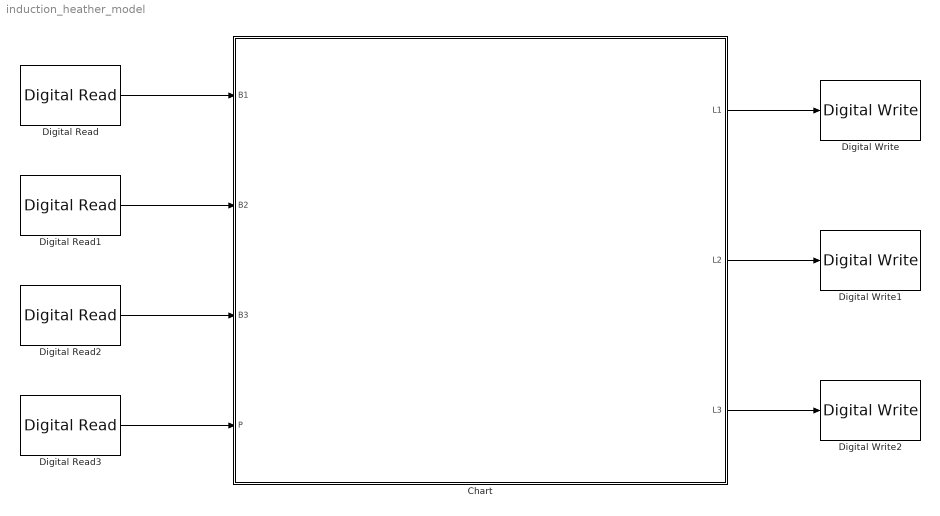
== stateflow chart induction_heather_model/Chart ==
  state INDUCTION_STOVE
    state HEATER [parallel]
      state OFF
        en: L1 = LED_OFF;
        L2 = LED_OFF;
        l3s = LED_OFF;
        period = 1;
      state COOKING
        state WAITING
          ready = false;
          on after(5, sec):
          ready = true;
        state READY
          en: level = 0;
          next_level = 0;
          l3s = LED_OFF;
          period = 0;
        state POWER
          en: level=next_level;
          l3s = LED_ON;
          period = int32( 2000/2^(level-1));
        state ANOMALY
          en: L2 = LED_ON;
          ex: L2 = LED_OFF;
        WAITING -> WAITING [order 1] : [b2s==PRESSED && next_level < 4]{next_level=next_level+1;}
        WAITING -> WAITING [order 3] : [b3s==PRESSED && next_level > 0]{next_level=next_level-1;}
        READY -> WAITING [order 2] : [b2s==PRESSED]{next_level=next_level+1;}
        WAITING -> READY [order 5] : [ready==true && next_level == 0]
        POWER -> WAITING [order 2] : [b2s==PRESSED && next_level < 4]{next_level=next_level+1;}
        POWER -> WAITING [order 3] : [b3s==PRESSED && next_level  > 0]{next_level=next_level-1;}
        WAITING -> ANOMALY [order 2] : [ps~=PRESENCE]
        WAITING -> POWER [order 4] : [ready==true && next_level ~= 0]
        POWER -> ANOMALY [order 1] : [ps~=PRESENCE]
        ANOMALY -> POWER [order 1] : [ps==PRESENCE]
      state ON
        en: L1 = LED_ON;
        L2 = LED_OFF;
        l3s = LED_OFF;
      (default) -> INDUCTION_STOVE.HEATER.OFF
      INDUCTION_STOVE.HEATER.OFF -> INDUCTION_STOVE.HEATER.ON : [b1s==PRESSED]
      INDUCTION_STOVE.HEATER.ON -> INDUCTION_STOVE.HEATER.OFF [order 2] : [b1s==PRESSED]
      COOKING -> INDUCTION_STOVE.HEATER.OFF : [b1s==PRESSED ]
      ANOMALY -> INDUCTION_STOVE.HEATER.ON [order 2] : [after(10,sec)]
      INDUCTION_STOVE.HEATER.ON -> READY [order 1] : [ps==PRESENCE]
      READY -> INDUCTION_STOVE.HEATER.ON [order 1] : [ps~=PRESENCE ]
    state INPUTS [parallel]
      state BUTTON_3 [parallel]
      state BUTTON_1 [parallel]
        state OFF
          en: b1s = ~PRESSED;
        state WAIT_ON
          en:
          on after(200, msec):
          b1s=PRESSED;
        state LONGPRESSED_OFF
          en: b1s =~PRESSED;
        state LONGPRESSED_ON
          en:
          b1s=~PRESSED;
        state WAIT_OFF
          on after(1,sec):
          b1s=PRESSED;
        state ON
          en: b1s = ~PRESSED;
        (default) -> INDUCTION_STOVE.INPUTS.BUTTON_1.OFF
        INDUCTION_STOVE.INPUTS.BUTTON_1.OFF -> WAIT_ON : [B1==PRESSED]
        WAIT_ON -> INDUCTION_STOVE.INPUTS.BUTTON_1.OFF [order 2] : [B1 ~= PRESSED]
        LONGPRESSED_OFF -> INDUCTION_STOVE.INPUTS.BUTTON_1.OFF : [B1~= PRESSED]
        WAIT_ON -> LONGPRESSED_ON [order 1] : [B1 == PRESSED && b1s == PRESSED]
        WAIT_OFF -> LONGPRESSED_OFF [order 1] : [B1==PRESSED && b1s == PRESSED]
        LONGPRESSED_ON -> INDUCTION_STOVE.INPUTS.BUTTON_1.ON : [B1 ~= PRESSED]
        INDUCTION_STOVE.INPUTS.BUTTON_1.ON -> WAIT_OFF : [B1==PRESSED]
        WAIT_OFF -> INDUCTION_STOVE.INPUTS.BUTTON_1.ON [order 2] : [B1 ~= PRESSED]
      state BUTTON_2 [parallel]
      state PRESENCE [parallel]
    state POWER_LED [parallel]
      state OFF
        entry: L3 = LED_OFF;
      state ON
        entry: L3 = LED_ON;
      (default) -> INDUCTION_STOVE.POWER_LED.OFF
      INDUCTION_STOVE.POWER_LED.ON -> INDUCTION_STOVE.POWER_LED.OFF : [l3s == LED_OFF || (after(period/2,msec) && l3s == LED_ON)]
      INDUCTION_STOVE.POWER_LED.OFF -> INDUCTION_STOVE.POWER_LED.ON : [after(period/2,msec) && l3s == LED_ON]
  data: button_state function_output; button_state function_output; presence_state function_output; B1 input boolean; B2 input boolean; B3 input boolean; P input boolean; L1 output boolean; L2 output boolean; L3 output boolean; LED_ON constant boolean =1; LED_OFF constant boolean =0; PRESSED constant boolean =0; b1s local boolean; ps local boolean; PRESENCE constant boolean =0; b3s local boolean; b2s local boolean; l3s local boolean; period local int32; level local; next_level local; ready local boolean

/*
 * induction_heather_model.c
 *
 * Academic License - for use in teaching, academic research, and meeting
 * course requirements at degree granting institutions only.  Not for
 * government, commercial, or other organizational use.
 *
 * Code generation for model "induction_heather_model".
 *
 * Model version              : 37
 * Simulink Coder version : 9.9 (R2023a) 19-Nov-2022
 * C source code generated on : Sat Jun 17 16:27:33 2023
 *
 * Target selection: ert.tlc
 * Note: GRT includes extra infrastructure and instrumentation for prototyping
 * Embedded hardware selection: ARM Compatible->ARM Cortex
 * Code generation objectives: Unspecified
 * Validation result: Not run
 */

#include "induction_heather_model.h"
#include "rtwtypes.h"
#include "induction_heather_model_private.h"
#include <math.h>
#include "induction_heather_model_types.h"
#include "rt_nonfinite.h"
#include <string.h>

/* Named constants for Chart: '<S1>/INDUCTION_STOVE.INPUTS.BUTTON_2' */
#define induction_he_IN_NO_ACTIVE_CHILD ((uint8_T)0U)
#define induction_heathe_IN_longpressed ((uint8_T)1U)
#define induction_heather_mo_IN_pressed ((uint8_T)2U)
#define induction_heather_mode_RELEASED (true)
#define induction_heather_model_IN_wait ((uint8_T)3U)
#define induction_heather_model_PRESSED (false)

/* Named constants for Chart: '<S1>/INDUCTION_STOVE.INPUTS.PRESENCE' */
#define induction__IN_NO_ACTIVE_CHILD_j ((uint8_T)0U)
#define induction_heather__IN_pressed_o ((uint8_T)1U)
#define induction_heather_mod_IN_wait_m ((uint8_T)2U)

/* Named constants for Chart: '<Root>/Chart' */
#define induction_he_IN_LONGPRESSED_OFF ((uint8_T)1U)
#define induction_hea_IN_LONGPRESSED_ON ((uint8_T)2U)
#define induction_heather_m_IN_WAIT_OFF ((uint8_T)5U)
#define induction_heather_mo_IN_ANOMALY ((uint8_T)1U)
#define induction_heather_mo_IN_COOKING ((uint8_T)1U)
#define induction_heather_mo_IN_WAITING ((uint8_T)4U)
#define induction_heather_mo_IN_WAIT_ON ((uint8_T)6U)
#define induction_heather_mod_IN_OFF_gt ((uint8_T)1U)
#define induction_heather_mode_IN_OFF_g ((uint8_T)3U)
#define induction_heather_mode_IN_ON_ie ((uint8_T)2U)
#define induction_heather_mode_IN_POWER ((uint8_T)2U)
#define induction_heather_mode_IN_READY ((uint8_T)3U)
#define induction_heather_model_IN_OFF ((uint8_T)2U)
#define induction_heather_model_IN_ON  ((uint8_T)3U)
#define induction_heather_model_IN_ON_i ((uint8_T)4U)
#define induction_heather_model_LED_OFF (false)
#define induction_heather_model_LED_ON (true)

/* Block signals (default storage) */
B_induction_heather_model_T induction_heather_model_B;

/* Block states (default storage) */
DW_induction_heather_model_T induction_heather_model_DW;

/* Real-time model */
static RT_MODEL_induction_heather_mo_T induction_heather_model_M_;
RT_MODEL_induction_heather_mo_T *const induction_heather_model_M =
  &induction_heather_model_M_;

/* Forward declaration for local functions */
static void induction_heather_model_HEATER(void);

/* Function for Chart: '<S1>/INDUCTION_STOVE.INPUTS.BUTTON_2' */
void induction_heather_button_during(boolean_T B1, boolean_T *button_state,
  real_T rtp_BUTTONDURATION, DW_INDUCTION_STOVEINPUTSBUTTO_T *localDW)
{
  switch (localDW->is_c4_library) {
   case induction_heathe_IN_longpressed:
    if (B1) {
      localDW->is_c4_library = induction_heather_model_IN_wait;
      *button_state = induction_heather_mode_RELEASED;
    }
    break;

   case induction_heather_mo_IN_pressed:
    if ((!*button_state) && (!B1)) {
      localDW->is_c4_library = induction_heathe_IN_longpressed;
      *button_state = induction_heather_mode_RELEASED;
    } else if (B1) {
      localDW->is_c4_library = induction_heather_model_IN_wait;
      *button_state = induction_heather_mode_RELEASED;
    } else if (localDW->temporalCounter_i1 >= (uint32_T)ceil(rtp_BUTTONDURATION *
                1000.0)) {
      *button_state = induction_heather_model_PRESSED;
    }
    break;

   default:
    /* case IN_wait: */
    if (!B1) {
      localDW->is_c4_library = induction_heather_mo_IN_pressed;
      localDW->temporalCounter_i1 = 0U;
      *button_state = induction_heather_mode_RELEASED;
    }
    break;
  }
}

/* Function for Chart: '<S1>/INDUCTION_STOVE.INPUTS.BUTTON_2' */
void induction_heather__button_enter(boolean_T *button_state,
  DW_INDUCTION_STOVEINPUTSBUTTO_T *localDW)
{
  /* Chart: '<S1>/INDUCTION_STOVE.INPUTS.BUTTON_2' */
  localDW->is_c4_library = induction_heather_model_IN_wait;
  *button_state = induction_heather_mode_RELEASED;
}

/* Function for Chart: '<S1>/INDUCTION_STOVE.INPUTS.BUTTON_2' */
void induction_heathe_button_gateway(DW_INDUCTION_STOVEINPUTSBUTTO_T *localDW)
{
  if (localDW->temporalCounter_i1 < MAX_uint32_T) {
    localDW->temporalCounter_i1++;
  }
}

/* Function for Chart: '<S1>/INDUCTION_STOVE.INPUTS.BUTTON_2' */
void induction_heather_m_button_init(DW_INDUCTION_STOVEINPUTSBUTTO_T *localDW)
{
  localDW->temporalCounter_i1 = 0U;
  localDW->is_c4_library = induction_he_IN_NO_ACTIVE_CHILD;
}

real_T rt_powd_snf(real_T u0, real_T u1)
{
  real_T tmp;
  real_T tmp_0;
  real_T y;
  if (rtIsNaN(u0) || rtIsNaN(u1)) {
    y = (rtNaN);
  } else {
    tmp = fabs(u0);
    tmp_0 = fabs(u1);
    if (rtIsInf(u1)) {
      if (tmp == 1.0) {
        y = 1.0;
      } else if (tmp > 1.0) {
        if (u1 > 0.0) {
          y = (rtInf);
        } else {
          y = 0.0;
        }
      } else if (u1 > 0.0) {
        y = 0.0;
      } else {
        y = (rtInf);
      }
    } else if (tmp_0 == 0.0) {
      y = 1.0;
    } else if (tmp_0 == 1.0) {
      if (u1 > 0.0) {
        y = u0;
      } else {
        y = 1.0 / u0;
      }
    } else if (u1 == 2.0) {
      y = u0 * u0;
    } else if ((u1 == 0.5) && (u0 >= 0.0)) {
      y = sqrt(u0);
    } else if ((u0 < 0.0) && (u1 > floor(u1))) {
      y = (rtNaN);
    } else {
      y = pow(u0, u1);
    }
  }

  return y;
}

real_T rt_roundd_snf(real_T u)
{
  real_T y;
  if (fabs(u) < 4.503599627370496E+15) {
    if (u >= 0.5) {
      y = floor(u + 0.5);
    } else if (u > -0.5) {
      y = u * 0.0;
    } else {
      y = ceil(u - 0.5);
    }
  } else {
    y = u;
  }

  return y;
}

/* Function for Chart: '<Root>/Chart' */
static void induction_heather_model_HEATER(void)
{
  real_T tmp;
  boolean_T guard1;
  boolean_T guard2;
  guard1 = false;
  guard2 = false;
  switch (induction_heather_model_DW.is_HEATER) {
   case induction_heather_mo_IN_COOKING:
    if (!induction_heather_model_DW.b1s) {
      induction_heather_model_DW.is_COOKING = induction__IN_NO_ACTIVE_CHILD_j;
      induction_heather_model_DW.is_HEATER = induction_heather_model_IN_OFF;
      induction_heather_model_B.L1 = induction_heather_model_LED_OFF;
      induction_heather_model_B.L2 = induction_heather_model_LED_OFF;
      induction_heather_model_DW.l3s = induction_heather_model_LED_OFF;
      induction_heather_model_DW.period = 1;
    } else {
      switch (induction_heather_model_DW.is_COOKING) {
       case induction_heather_mo_IN_ANOMALY:
        if (!induction_heather_model_DW.ps) {
          induction_heather_model_B.L2 = induction_heather_model_LED_OFF;
          induction_heather_model_DW.is_COOKING =
            induction_heather_mode_IN_POWER;
          induction_heather_model_DW.l3s = induction_heather_model_LED_ON;
          tmp = rt_roundd_snf(2000.0 / rt_powd_snf(2.0,
            induction_heather_model_DW.next_level - 1.0));
          if (tmp < 2.147483648E+9) {
            induction_heather_model_DW.period = (int32_T)tmp;
          } else {
            induction_heather_model_DW.period = MAX_int32_T;
          }
        } else if (induction_heather_model_DW.temporalCounter_i1 >= 10000U) {
          induction_heather_model_DW.is_COOKING =
            induction__IN_NO_ACTIVE_CHILD_j;
          induction_heather_model_DW.is_HEATER = induction_heather_model_IN_ON;
          induction_heather_model_B.L1 = induction_heather_model_LED_ON;
          induction_heather_model_B.L2 = induction_heather_model_LED_OFF;
          induction_heather_model_DW.l3s = induction_heather_model_LED_OFF;
        }
        break;

       case induction_heather_mode_IN_POWER:
        if (induction_heather_model_DW.ps) {
          induction_heather_model_DW.is_COOKING =
            induction_heather_mo_IN_ANOMALY;
          induction_heather_model_DW.temporalCounter_i1 = 0U;
          induction_heather_model_B.L2 = induction_heather_model_LED_ON;
        } else if ((!induction_heather_model_DW.b2s) &&
                   (induction_heather_model_DW.next_level < 4.0)) {
          induction_heather_model_DW.next_level++;
          guard2 = true;
        } else if ((!induction_heather_model_DW.b3s) &&
                   (induction_heather_model_DW.next_level > 0.0)) {
          induction_heather_model_DW.next_level--;
          guard2 = true;
        }
        break;

       case induction_heather_mode_IN_READY:
        if (induction_heather_model_DW.ps) {
          induction_heather_model_DW.is_COOKING =
            induction__IN_NO_ACTIVE_CHILD_j;
          induction_heather_model_DW.is_HEATER = induction_heather_model_IN_ON;
          induction_heather_model_B.L1 = induction_heather_model_LED_ON;
          induction_heather_model_B.L2 = induction_heather_model_LED_OFF;
          induction_heather_model_DW.l3s = induction_heather_model_LED_OFF;
        } else if (!induction_heather_model_DW.b2s) {
          induction_heather_model_DW.next_level++;
          induction_heather_model_DW.is_COOKING =
            induction_heather_mo_IN_WAITING;
          induction_heather_model_DW.temporalCounter_i1 = 0U;
          induction_heather_model_DW.ready = false;
        }
        break;

       default:
        /* case IN_WAITING: */
        if ((!induction_heather_model_DW.b2s) &&
            (induction_heather_model_DW.next_level < 4.0)) {
          induction_heather_model_DW.next_level++;
          guard1 = true;
        } else if (induction_heather_model_DW.ps) {
          induction_heather_model_DW.is_COOKING =
            induction_heather_mo_IN_ANOMALY;
          induction_heather_model_DW.temporalCounter_i1 = 0U;
          induction_heather_model_B.L2 = induction_heather_model_LED_ON;
        } else if ((!induction_heather_model_DW.b3s) &&
                   (induction_heather_model_DW.next_level > 0.0)) {
          induction_heather_model_DW.next_level--;
          guard1 = true;
        } else if (induction_heather_model_DW.ready &&
                   (induction_heather_model_DW.next_level != 0.0)) {
          induction_heather_model_DW.is_COOKING =
            induction_heather_mode_IN_POWER;
          induction_heather_model_DW.l3s = induction_heather_model_LED_ON;
          tmp = rt_roundd_snf(2000.0 / rt_powd_snf(2.0,
            induction_heather_model_DW.next_level - 1.0));
          if (tmp < 2.147483648E+9) {
            induction_heather_model_DW.period = (int32_T)tmp;
          } else {
            induction_heather_model_DW.period = MAX_int32_T;
          }
        } else if (induction_heather_model_DW.ready &&
                   (induction_heather_model_DW.next_level == 0.0)) {
          induction_heather_model_DW.is_COOKING =
            induction_heather_mode_IN_READY;
          induction_heather_model_DW.next_level = 0.0;
          induction_heather_model_DW.l3s = induction_heather_model_LED_OFF;
          induction_heather_model_DW.period = 0;
        } else {
          induction_heather_model_DW.ready =
            (induction_heather_model_DW.temporalCounter_i1 >= 5000U);
        }
        break;
      }
    }
    break;

   case induction_heather_model_IN_OFF:
    induction_heather_model_B.L1 = induction_heather_model_LED_OFF;
    if (!induction_heather_model_DW.b1s) {
      induction_heather_model_DW.is_HEATER = induction_heather_model_IN_ON;
      induction_heather_model_B.L1 = induction_heather_model_LED_ON;
      induction_heather_model_B.L2 = induction_heather_model_LED_OFF;
      induction_heather_model_DW.l3s = induction_heather_model_LED_OFF;
    }
    break;

   default:
    /* case IN_ON: */
    induction_heather_model_B.L1 = induction_heather_model_LED_ON;
    if (!induction_heather_model_DW.ps) {
      induction_heather_model_DW.is_HEATER = induction_heather_mo_IN_COOKING;
      induction_heather_model_DW.is_COOKING = induction_heather_mode_IN_READY;
      induction_heather_model_DW.next_level = 0.0;
      induction_heather_model_DW.l3s = induction_heather_model_LED_OFF;
      induction_heather_model_DW.period = 0;
    } else if (!induction_heather_model_DW.b1s) {
      induction_heather_model_DW.is_HEATER = induction_heather_model_IN_OFF;
      induction_heather_model_B.L1 = induction_heather_model_LED_OFF;
      induction_heather_model_B.L2 = induction_heather_model_LED_OFF;
      induction_heather_model_DW.l3s = induction_heather_model_LED_OFF;
      induction_heather_model_DW.period = 1;
    }
    break;
  }

  if (guard2) {
    induction_heather_model_DW.is_COOKING = induction_heather_mo_IN_WAITING;
    induction_heather_model_DW.temporalCounter_i1 = 0U;
    induction_heather_model_DW.ready = false;
  }

  if (guard1) {
    induction_heather_model_DW.is_COOKING = induction_heather_mo_IN_WAITING;
    induction_heather_model_DW.temporalCounter_i1 = 0U;
    induction_heather_model_DW.ready = false;
  }
}

/* Model step function */
void induction_heather_model_step(void)
{
  boolean_T DigitalRead3;
  boolean_T L3;

  /* MATLABSystem: '<Root>/Digital Read' */
  if (induction_heather_model_DW.obj_h.SampleTime !=
      induction_heather_model_P.DigitalRead_SampleTime) {
    induction_heather_model_DW.obj_h.SampleTime =
      induction_heather_model_P.DigitalRead_SampleTime;
  }

  L3 = MW_digitalIO_read(induction_heather_model_DW.obj_h.MW_DIGITALIO_HANDLE);

  /* MATLABSystem: '<Root>/Digital Read1' */
  if (induction_heather_model_DW.obj_b.SampleTime !=
      induction_heather_model_P.DigitalRead1_SampleTime) {
    induction_heather_model_DW.obj_b.SampleTime =
      induction_heather_model_P.DigitalRead1_SampleTime;
  }

  /* MATLABSystem: '<Root>/Digital Read1' */
  induction_heather_model_B.DigitalRead1 = MW_digitalIO_read
    (induction_heather_model_DW.obj_b.MW_DIGITALIO_HANDLE);

  /* MATLABSystem: '<Root>/Digital Read2' */
  if (induction_heather_model_DW.obj_m.SampleTime !=
      induction_heather_model_P.DigitalRead2_SampleTime) {
    induction_heather_model_DW.obj_m.SampleTime =
      induction_heather_model_P.DigitalRead2_SampleTime;
  }

  /* MATLABSystem: '<Root>/Digital Read2' */
  induction_heather_model_B.DigitalRead2 = MW_digitalIO_read
    (induction_heather_model_DW.obj_m.MW_DIGITALIO_HANDLE);

  /* MATLABSystem: '<Root>/Digital Read3' */
  if (induction_heather_model_DW.obj.SampleTime !=
      induction_heather_model_P.DigitalRead3_SampleTime) {
    induction_heather_model_DW.obj.SampleTime =
      induction_heather_model_P.DigitalRead3_SampleTime;
  }

  DigitalRead3 = MW_digitalIO_read
    (induction_heather_model_DW.obj.MW_DIGITALIO_HANDLE);

  /* Chart: '<Root>/Chart' incorporates:
   *  Chart: '<S1>/INDUCTION_STOVE.INPUTS.BUTTON_2'
   *  Chart: '<S1>/INDUCTION_STOVE.INPUTS.BUTTON_3'
   *  MATLABSystem: '<Root>/Digital Read'
   *  MATLABSystem: '<Root>/Digital Read3'
   */
  if (induction_heather_model_DW.temporalCounter_i1 < 16383U) {
    induction_heather_model_DW.temporalCounter_i1++;
  }

  if (induction_heather_model_DW.temporalCounter_i2 < 1023U) {
    induction_heather_model_DW.temporalCounter_i2++;
  }

  if (induction_heather_model_DW.temporalCounter_i3 < MAX_uint32_T) {
    induction_heather_model_DW.temporalCounter_i3++;
  }

  induction_heathe_button_gateway
    (&induction_heather_model_DW.sf_INDUCTION_STOVEINPUTSBUTTO_m);
  induction_heathe_button_gateway
    (&induction_heather_model_DW.sf_INDUCTION_STOVEINPUTSBUTTON_);
  if (induction_heather_model_DW.temporalCounter_i1_d < 511U) {
    induction_heather_model_DW.temporalCounter_i1_d++;
  }

  if (induction_heather_model_DW.is_active_c2_induction_heather_ == 0U) {
    induction_heather_model_DW.is_active_c2_induction_heather_ = 1U;
    induction_heather_model_DW.is_HEATER = induction_heather_model_IN_OFF;
    induction_heather_model_B.L1 = induction_heather_model_LED_OFF;
    induction_heather_model_B.L2 = induction_heather_model_LED_OFF;
    induction_heather_model_DW.l3s = induction_heather_model_LED_OFF;
    induction_heather_model_DW.period = 1;
    induction_heather_model_DW.is_active_BUTTON_2 = 1U;
    induction_heather__button_enter(&induction_heather_model_DW.b2s,
      &induction_heather_model_DW.sf_INDUCTION_STOVEINPUTSBUTTON_);
    induction_heather_model_DW.is_active_PRESENCE = 1U;

    /* Chart: '<S1>/INDUCTION_STOVE.INPUTS.PRESENCE' */
    induction_heather_model_DW.is_c1_library = induction_heather_mod_IN_wait_m;
    induction_heather_model_DW.ps = true;
    induction_heather_model_DW.tp_BUTTON_1 = 1U;
    induction_heather_model_DW.is_BUTTON_1 = induction_heather_mode_IN_OFF_g;
    induction_heather_model_DW.b1s = true;
    induction_heather_model_DW.is_active_BUTTON_3 = 1U;
    induction_heather__button_enter(&induction_heather_model_DW.b3s,
      &induction_heather_model_DW.sf_INDUCTION_STOVEINPUTSBUTTO_m);
    induction_heather_model_DW.is_POWER_LED = induction_heather_mod_IN_OFF_gt;
    induction_heather_model_DW.temporalCounter_i3 = 0U;
    L3 = induction_heather_model_LED_OFF;
  } else {
    induction_heather_model_HEATER();
    induction_heather_button_during(induction_heather_model_B.DigitalRead1,
      &induction_heather_model_DW.b2s,
      induction_heather_model_P.INDUCTION_STOVEINPUTSBUTTON_2_B,
      &induction_heather_model_DW.sf_INDUCTION_STOVEINPUTSBUTTON_);
    if (induction_heather_model_DW.is_c1_library ==
        induction_heather__IN_pressed_o) {
      if (DigitalRead3) {
        induction_heather_model_DW.is_c1_library =
          induction_heather_mod_IN_wait_m;
        induction_heather_model_DW.ps = true;
      } else {
        induction_heather_model_DW.ps =
          ((induction_heather_model_DW.temporalCounter_i1_d < 500U) &&
           induction_heather_model_DW.ps);
      }

      /* case IN_wait: */
    } else if (!DigitalRead3) {
      induction_heather_model_DW.is_c1_library = induction_heather__IN_pressed_o;
      induction_heather_model_DW.temporalCounter_i1_d = 0U;
      induction_heather_model_DW.ps = true;
    }

    switch (induction_heather_model_DW.is_BUTTON_1) {
     case induction_he_IN_LONGPRESSED_OFF:
      if (L3) {
        induction_heather_model_DW.is_BUTTON_1 = induction_heather_mode_IN_OFF_g;
        induction_heather_model_DW.b1s = true;
      }
      break;

     case induction_hea_IN_LONGPRESSED_ON:
      if (L3) {
        induction_heather_model_DW.is_BUTTON_1 = induction_heather_model_IN_ON_i;
        induction_heather_model_DW.b1s = true;
      }
      break;

     case induction_heather_mode_IN_OFF_g:
      if (!L3) {
        induction_heather_model_DW.is_BUTTON_1 = induction_heather_mo_IN_WAIT_ON;
        induction_heather_model_DW.temporalCounter_i2 = 0U;
      }
      break;

     case induction_heather_model_IN_ON_i:
      if (!L3) {
        induction_heather_model_DW.is_BUTTON_1 = induction_heather_m_IN_WAIT_OFF;
        induction_heather_model_DW.temporalCounter_i2 = 0U;
      }
      break;

     case induction_heather_m_IN_WAIT_OFF:
      if ((!L3) && (!induction_heather_model_DW.b1s)) {
        induction_heather_model_DW.is_BUTTON_1 = induction_he_IN_LONGPRESSED_OFF;
        induction_heather_model_DW.b1s = true;
      } else if (L3) {
        induction_heather_model_DW.is_BUTTON_1 = induction_heather_model_IN_ON_i;
        induction_heather_model_DW.b1s = true;
      } else {
        induction_heather_model_DW.b1s =
          ((induction_heather_model_DW.temporalCounter_i2 < 1000U) &&
           induction_heather_model_DW.b1s);
      }
      break;

     default:
      /* case IN_WAIT_ON: */
      if ((!L3) && (!induction_heather_model_DW.b1s)) {
        induction_heather_model_DW.is_BUTTON_1 = induction_hea_IN_LONGPRESSED_ON;
        induction_heather_model_DW.b1s = true;
      } else if (L3) {
        induction_heather_model_DW.is_BUTTON_1 = induction_heather_mode_IN_OFF_g;
        induction_heather_model_DW.b1s = true;
      } else {
        induction_heather_model_DW.b1s =
          ((induction_heather_model_DW.temporalCounter_i2 < 200U) &&
           induction_heather_model_DW.b1s);
      }
      break;
    }

    induction_heather_button_during(induction_heather_model_B.DigitalRead2,
      &induction_heather_model_DW.b3s,
      induction_heather_model_P.INDUCTION_STOVEINPUTSBUTTON_3_B,
      &induction_heather_model_DW.sf_INDUCTION_STOVEINPUTSBUTTO_m);
    if (induction_heather_model_DW.is_POWER_LED ==
        induction_heather_mod_IN_OFF_gt) {
      L3 = induction_heather_model_LED_OFF;
      if ((induction_heather_model_DW.temporalCounter_i3 >= (uint32_T)
           rt_roundd_snf((real_T)induction_heather_model_DW.period / 2.0)) &&
          induction_heather_model_DW.l3s) {
        induction_heather_model_DW.is_POWER_LED =
          induction_heather_mode_IN_ON_ie;
        induction_heather_model_DW.temporalCounter_i3 = 0U;
        L3 = induction_heather_model_LED_ON;
      }
    } else {
      /* case IN_ON: */
      L3 = induction_heather_model_LED_ON;
      if ((!induction_heather_model_DW.l3s) ||
          (induction_heather_model_DW.temporalCounter_i3 >= (uint32_T)
           rt_roundd_snf((real_T)induction_heather_model_DW.period / 2.0))) {
        induction_heather_model_DW.is_POWER_LED =
          induction_heather_mod_IN_OFF_gt;
        induction_heather_model_DW.temporalCounter_i3 = 0U;
        L3 = induction_heather_model_LED_OFF;
      }
    }
  }

  /* End of Chart: '<Root>/Chart' */

  /* MATLABSystem: '<Root>/Digital Write' */
  MW_digitalIO_write(induction_heather_model_DW.obj_bs.MW_DIGITALIO_HANDLE,
                     induction_heather_model_B.L1);

  /* MATLABSystem: '<Root>/Digital Write1' */
  MW_digitalIO_write(induction_heather_model_DW.obj_ac.MW_DIGITALIO_HANDLE,
                     induction_heather_model_B.L2);

  /* MATLABSystem: '<Root>/Digital Write2' */
  MW_digitalIO_write(induction_heather_model_DW.obj_a.MW_DIGITALIO_HANDLE, L3);
}
